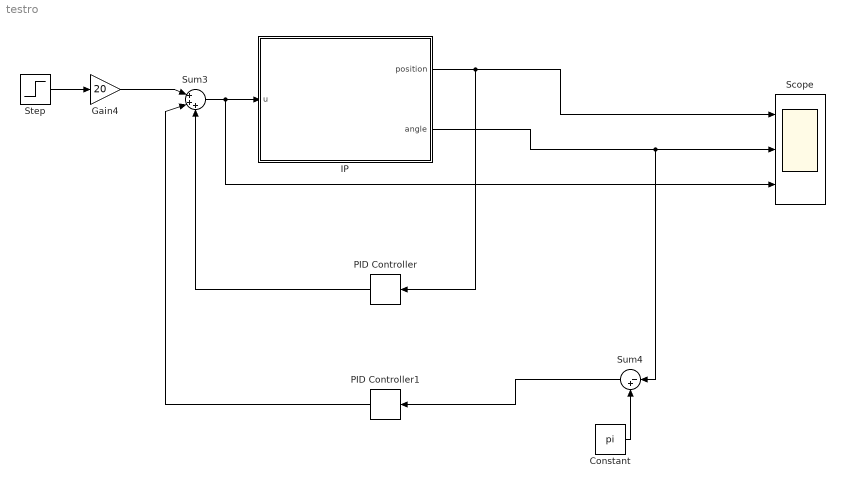
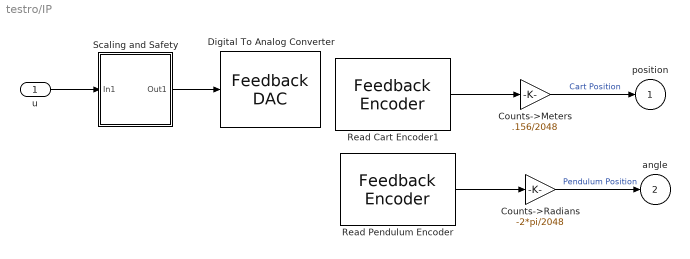
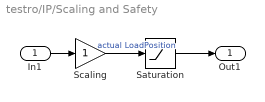
/*
 * Real-Time Workshop code generation for Simulink model "testro.mdl".
 *
 * Model Version                        : 1.1
 * Real-Time Workshop file version      : 5.0 $Date: 2002/05/30 19:21:33 $
 * Real-Time Workshop file generated on : Mon Mar 23 11:39:34 2009
 * TLC version                          : 5.0 (Jun 18 2002)
 * C source code generated on           : Mon Mar 23 11:39:34 2009
 */

#include <math.h>
#include <string.h>
#include "testro.h"
#include "testro_private.h"

/* Block signals (auto storage) */
BlockIO rtB;

/* Continuous states */
ContinuousStates rtX;

/* Block states (auto storage) */
D_Work rtDWork;

/* Parent Simstruct */
static rtModel_testro model_S;
rtModel_testro *const rtM_testro = &model_S;

/* Initial conditions for root system: '<Root>' */
void MdlInitialize(void)
{

  /* TransferFcn Block: <S3>/Integral */
  rtX.Integral_a_CSTATE = 0.0;

  /* Derivative Block: <S3>/Derivative */
  rtDWork.Derivative_a_RWORK.TimeStampA = rtInf;
  rtDWork.Derivative_a_RWORK.TimeStampB = rtInf;

  /* TransferFcn Block: <S2>/Integral */
  rtX.Integral_b_CSTATE = 0.0;

  /* Derivative Block: <S2>/Derivative */
  rtDWork.Derivative_b_RWORK.TimeStampA = rtInf;
  rtDWork.Derivative_b_RWORK.TimeStampB = rtInf;
}

/* Start for root system: '<Root>' */
void MdlStart(void)
{

  /* Level2 S-Function Block: <S1>/Read Cart Encoder1 (pci1711FedEnc) */
  {
    SimStruct *rts = rtM_testro->childSfunctions[0];
    sfcnStart(rts);
  }

  /* Level2 S-Function Block: <S1>/Read Pendulum Encoder (pci1711FedEnc) */
  {
    SimStruct *rts = rtM_testro->childSfunctions[1];
    sfcnStart(rts);
  }

  /* Level2 S-Function Block: <S1>/Digital To Analog Converter (pci1711FedDac) */
  {
    SimStruct *rts = rtM_testro->childSfunctions[2];
    sfcnStart(rts);
  }

  MdlInitialize();
}

/* Outputs for root system: '<Root>' */
void MdlOutputs(int_T tid)
{
  /* local block i/o variables */
  real_T rtb_Step;
  real_T rtb_Integral_a;
  real_T rtb_Derivative_a;
  real_T rtb_Integral_b;
  real_T rtb_Derivative_b;
  real_T rtb_actual_LoadPosition;

  if (rtmIsSampleHit(rtM_testro, 1, tid)) { /* Sample time: [0.001, 0.0] */

    /* Level2 S-Function Block: <S1>/Read Cart Encoder1 (pci1711FedEnc) */
    {
      SimStruct *rts = rtM_testro->childSfunctions[0];
      sfcnOutputs(rts, tid);
    }

    /* Gain: '<S1>/Counts->Meters'
     *
     * Regarding '<S1>/Counts->Meters':
     *   Gain value: rtP.Counts_Meters_Gain
     */
    rtB.Cart_Position = rtB.Read_Cart_Encoder1 * rtP.Counts_Meters_Gain;

    /* Level2 S-Function Block: <S1>/Read Pendulum Encoder (pci1711FedEnc) */
    {
      SimStruct *rts = rtM_testro->childSfunctions[1];
      sfcnOutputs(rts, tid);
    }

    /* Gain: '<S1>/Counts->Radians'
     *
     * Regarding '<S1>/Counts->Radians':
     *   Gain value: rtP.Counts_Radians_Gain
     */
    rtB.Pendulum_Position = rtB.Read_Pendulum_Encoder * rtP.Counts_Radians_Gain;
  }

  if (rtmIsContinuousTask(rtM_testro, tid)) { /* Sample time: [0.0, 0.0] */

    /* Step: '<Root>/Step' */
    if (rtmGetTaskTime(rtM_testro, tid) < rtP.Step_Time) {
      rtb_Step = rtP.Step_Y0;
    } else {
      rtb_Step = rtP.Step_YFinal;
    }
  }

  if (rtmIsSampleHit(rtM_testro, 1, tid)) { /* Sample time: [0.001, 0.0] */

    /* Sum: '<Root>/Sum4' incorporates:
     *   Constant: '<Root>/Constant'
     */
    rtB.Sum4 = - rtB.Pendulum_Position + rtP.Constant_Value;

    /* Gain: '<S3>/Proportional'
     *
     * Regarding '<S3>/Proportional':
     *   Gain value: rtP.Proportional_a_Gain
     */
    rtB.Proportional_a = rtB.Sum4 * rtP.Proportional_a_Gain;
  }

  if (rtmIsContinuousTask(rtM_testro, tid)) { /* Sample time: [0.0, 0.0] */

    /* TransferFcn Block: <S3>/Integral */
    rtb_Integral_a = rtP.Integral_a_C*rtX.Integral_a_CSTATE;
  }

  if (rtmIsSampleHit(rtM_testro, 1, tid)) { /* Sample time: [0.001, 0.0] */

    /* Gain: '<S3>/D'
     *
     * Regarding '<S3>/D':
     *   Gain value: rtP.D_a_Gain
     */
    rtB.D_a = rtB.Sum4 * rtP.D_a_Gain;
  }

  if (rtmIsContinuousTask(rtM_testro, tid)) { /* Sample time: [0.0, 0.0] */

    /* Derivative Block: <S3>/Derivative */
    {
      real_T t = rtmGetTaskTime(rtM_testro, tid);
      real_T timeStampA = rtDWork.Derivative_a_RWORK.TimeStampA;
      real_T timeStampB = rtDWork.Derivative_a_RWORK.TimeStampB;

      if (timeStampA >= t && timeStampB >= t) {
        rtb_Derivative_a = 0.0;
      } else {
        real_T deltaT;
        real_T *lastBank = &rtDWork.Derivative_a_RWORK.TimeStampA;
        if (timeStampA < timeStampB) {
          if (timeStampB < t) {
            lastBank += 2;
          }
        } else if (timeStampA >= t) {
          lastBank += 2;
        }
        deltaT = t - *lastBank++;
        rtb_Derivative_a = (rtB.D_a - *lastBank++) / deltaT;
      }
    }
  }

  if (rtmIsSampleHit(rtM_testro, 1, tid)) { /* Sample time: [0.001, 0.0] */

    /* Gain: '<S2>/Proportional'
     *
     * Regarding '<S2>/Proportional':
     *   Gain value: rtP.Proportional_b_Gain
     */
    rtB.Proportional_b = rtB.Cart_Position * rtP.Proportional_b_Gain;
  }

  if (rtmIsContinuousTask(rtM_testro, tid)) { /* Sample time: [0.0, 0.0] */

    /* TransferFcn Block: <S2>/Integral */
    rtb_Integral_b = rtP.Integral_b_C*rtX.Integral_b_CSTATE;
  }

  if (rtmIsSampleHit(rtM_testro, 1, tid)) { /* Sample time: [0.001, 0.0] */

    /* Gain: '<S2>/D'
     *
     * Regarding '<S2>/D':
     *   Gain value: rtP.D_b_Gain
     */
    rtB.D_b = rtB.Cart_Position * rtP.D_b_Gain;
  }

  if (rtmIsContinuousTask(rtM_testro, tid)) { /* Sample time: [0.0, 0.0] */

    /* Derivative Block: <S2>/Derivative */
    {
      real_T t = rtmGetTaskTime(rtM_testro, tid);
      real_T timeStampA = rtDWork.Derivative_b_RWORK.TimeStampA;
      real_T timeStampB = rtDWork.Derivative_b_RWORK.TimeStampB;

      if (timeStampA >= t && timeStampB >= t) {
        rtb_Derivative_b = 0.0;
      } else {
        real_T deltaT;
        real_T *lastBank = &rtDWork.Derivative_b_RWORK.TimeStampA;
        if (timeStampA < timeStampB) {
          if (timeStampB < t) {
            lastBank += 2;
          }
        } else if (timeStampA >= t) {
          lastBank += 2;
        }
        deltaT = t - *lastBank++;
        rtb_Derivative_b = (rtB.D_b - *lastBank++) / deltaT;
      }
    }

    /* Sum: '<Root>/Sum3' incorporates:
     *   Gain: '<Root>/Gain4'
     *   Sum: '<S3>/Sum'
     *   Sum: '<S2>/Sum'
     *
     * Regarding '<Root>/Gain4':
     *   Gain value: rtP.Gain4_Gain
     */
    rtB.Sum3 = (rtb_Step * rtP.Gain4_Gain)
      + (rtB.Proportional_a + rtb_Integral_a + rtb_Derivative_a)
      + (rtB.Proportional_b + rtb_Integral_b + rtb_Derivative_b);
  }

  if (rtmIsSampleHit(rtM_testro, 1, tid)) { /* Sample time: [0.001, 0.0] */

    /* Level2 S-Function Block: <S1>/Digital To Analog Converter (pci1711FedDac) */
    {
      SimStruct *rts = rtM_testro->childSfunctions[2];
      sfcnOutputs(rts, tid);
    }
  }

  if (rtmIsContinuousTask(rtM_testro, tid)) { /* Sample time: [0.0, 0.0] */

    /* Gain: '<S4>/Scaling'
     *
     * Regarding '<S4>/Scaling':
     *   Gain value: rtP.Scaling_Gain
     */
    rtb_actual_LoadPosition = rtB.Sum3 * rtP.Scaling_Gain;

    /* Saturate: '<S4>/Saturation'
     *
     * Regarding '<S4>/Saturation':
     *   Lower limit: rtP.Saturation_LowerSat
     *   Upper limit: rtP.Saturation_UpperSat
     */
    if (rtb_actual_LoadPosition >= rtP.Saturation_UpperSat) {
      rtB.Saturation = rtP.Saturation_UpperSat;
    } else if (rtb_actual_LoadPosition <= rtP.Saturation_LowerSat) {
      rtB.Saturation = rtP.Saturation_LowerSat;
    } else {
      rtB.Saturation = rtb_actual_LoadPosition;
    }
  }
}

/* Update for root system: '<Root>' */
void MdlUpdate(int_T tid)
{

  if (rtmIsContinuousTask(rtM_testro, tid)) { /* Sample time: [0.0, 0.0] */

    /* Derivative Block: <S3>/Derivative */
    {
      real_T timeStampA = rtDWork.Derivative_a_RWORK.TimeStampA;
      real_T timeStampB = rtDWork.Derivative_a_RWORK.TimeStampB;
      real_T *lastBank = &rtDWork.Derivative_a_RWORK.TimeStampA;

      if (timeStampA != rtInf) {
        if (timeStampB == rtInf) {
          lastBank += 2;
        } else if (timeStampA >= timeStampB) {
          lastBank += 2;
        }
      }
      *lastBank++ = rtmGetTaskTime(rtM_testro, tid);
      *lastBank++ = rtB.D_a;
    }

    /* Derivative Block: <S2>/Derivative */
    {
      real_T timeStampA = rtDWork.Derivative_b_RWORK.TimeStampA;
      real_T timeStampB = rtDWork.Derivative_b_RWORK.TimeStampB;
      real_T *lastBank = &rtDWork.Derivative_b_RWORK.TimeStampA;

      if (timeStampA != rtInf) {
        if (timeStampB == rtInf) {
          lastBank += 2;
        } else if (timeStampA >= timeStampB) {
          lastBank += 2;
        }
      }
      *lastBank++ = rtmGetTaskTime(rtM_testro, tid);
      *lastBank++ = rtB.D_b;
    }
  }
}
